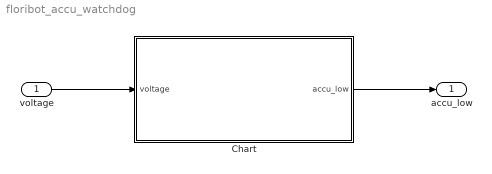
== stateflow chart floribot_accu_watchdog/Chart ==
  state Accu_ok
    accu_low = false;
  state Accu_low
    accu_low = true;
  (default) -> Accu_ok
  Accu_ok -> Accu_low : [voltage < 10]
  Accu_low -> Accu_ok : [voltage > 10]
  data: voltage input double; accu_low output boolean

/*
 * File: floribot_accu_watchdog.cpp
 *
 * Code generated for Simulink model 'floribot_accu_watchdog'.
 *
 * Model version                  : 1.22
 * Simulink Coder version         : 8.4 (R2013a) 13-Feb-2013
 * TLC version                    : 8.4 (Jan 19 2013)
 * C/C++ source code generated on : Thu Jun 13 11:54:35 2013
 *
 * Target selection: ert.tlc
 * Embedded hardware selection: Generic->32-bit x86 compatible
 * Code generation objectives: Unspecified
 * Validation result: Not run
 */

#include "floribot_accu_watchdog.h"
#include "floribot_accu_watchdog_private.h"

/* Named constants for Chart: '<Root>/Chart' */
#define floribot_acc_IN_NO_ACTIVE_CHILD ((uint8_T)0U)
#define floribot_accu_watch_IN_Accu_low ((uint8_T)1U)
#define floribot_accu_watchd_IN_Accu_ok ((uint8_T)2U)

/* Block states (auto storage) */
DW_floribot_accu_watchdog_T floribot_accu_watchdog_DW;

/* External inputs (root inport signals with auto storage) */
ExtU_floribot_accu_watchdog_T floribot_accu_watchdog_U;

/* External outputs (root outports fed by signals with auto storage) */
ExtY_floribot_accu_watchdog_T floribot_accu_watchdog_Y;

/* Real-time model */
RT_MODEL_floribot_accu_watchd_T floribot_accu_watchdog_M_;
RT_MODEL_floribot_accu_watchd_T *const floribot_accu_watchdog_M =
  &floribot_accu_watchdog_M_;

/* Model step function */
void floribot_accu_watchdog_step(void)
{
  /* Chart: '<Root>/Chart' incorporates:
   *  Inport: '<Root>/voltage'
   */
  /* Gateway: Chart */
  /* During: Chart */
  if (floribot_accu_watchdog_DW.is_active_c1_floribot_accu_watc == 0U) {
    /* Entry: Chart */
    floribot_accu_watchdog_DW.is_active_c1_floribot_accu_watc = 1U;

    /* Entry Internal: Chart */
    /* Transition: '<S1>:7' */
    floribot_accu_watchdog_DW.is_c1_floribot_accu_watchdog =
      floribot_accu_watchd_IN_Accu_ok;

    /* Outport: '<Root>/accu_low' */
    /* Entry 'Accu_ok': '<S1>:3' */
    floribot_accu_watchdog_Y.accu_low = FALSE;
  } else if (floribot_accu_watchdog_DW.is_c1_floribot_accu_watchdog ==
             floribot_accu_watch_IN_Accu_low) {
    /* During 'Accu_low': '<S1>:4' */
    if (floribot_accu_watchdog_U.voltage > 10.0) {
      /* Transition: '<S1>:6' */
      floribot_accu_watchdog_DW.is_c1_floribot_accu_watchdog =
        floribot_accu_watchd_IN_Accu_ok;

      /* Outport: '<Root>/accu_low' */
      /* Entry 'Accu_ok': '<S1>:3' */
      floribot_accu_watchdog_Y.accu_low = FALSE;
    }
  } else {
    /* During 'Accu_ok': '<S1>:3' */
    if (floribot_accu_watchdog_U.voltage < 10.0) {
      /* Transition: '<S1>:5' */
      floribot_accu_watchdog_DW.is_c1_floribot_accu_watchdog =
        floribot_accu_watch_IN_Accu_low;

      /* Outport: '<Root>/accu_low' */
      /* Entry 'Accu_low': '<S1>:4' */
      floribot_accu_watchdog_Y.accu_low = TRUE;
    }
  }

  /* End of Chart: '<Root>/Chart' */
}
